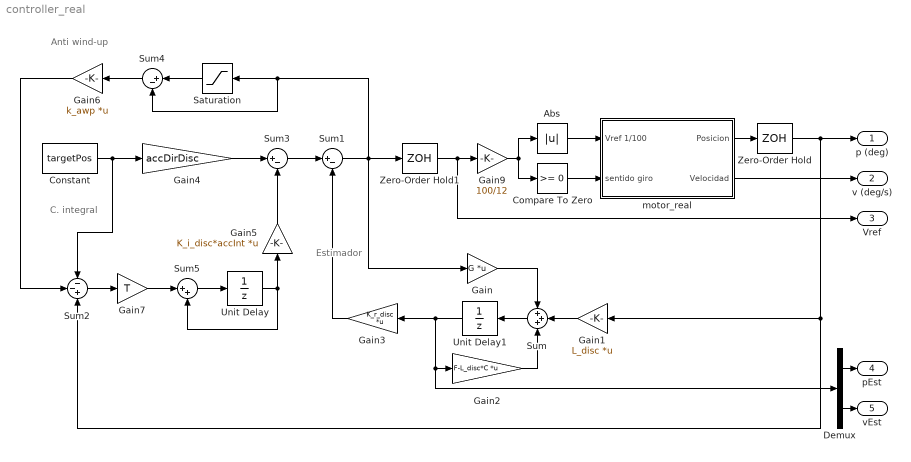
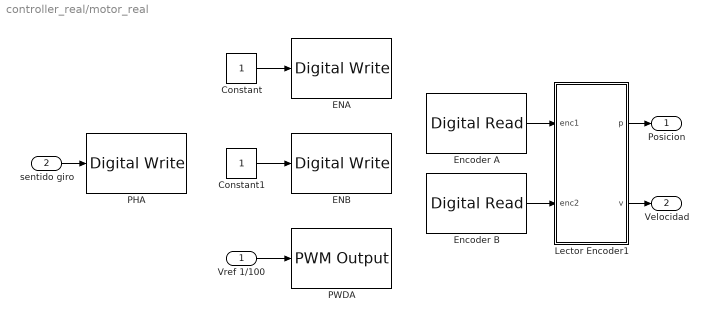
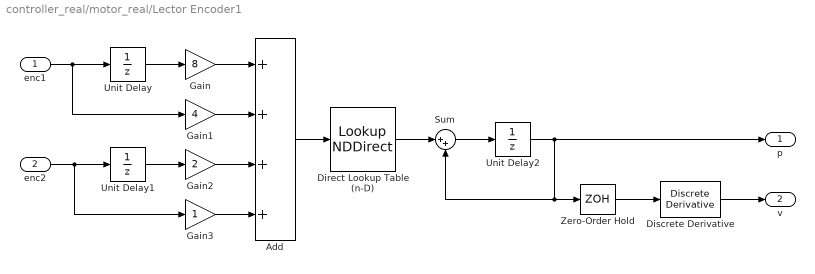
/*
 * controller_real.c
 *
 * Academic License - for use in teaching, academic research, and meeting
 * course requirements at degree granting institutions only.  Not for
 * government, commercial, or other organizational use.
 *
 * Code generation for model "controller_real".
 *
 * Model version              : 1.6
 * Simulink Coder version : 23.2 (R2023b) 01-Aug-2023
 * C source code generated on : Wed Jan 17 11:15:32 2024
 *
 * Target selection: ert.tlc
 * Note: GRT includes extra infrastructure and instrumentation for prototyping
 * Embedded hardware selection: ARM Compatible->ARM Cortex
 * Code generation objectives: Unspecified
 * Validation result: Not run
 */

#include "controller_real.h"
#include "rtwtypes.h"
#include <math.h>
#include <string.h>
#include "controller_real_private.h"

/* Block signals (default storage) */
B_controller_real_T controller_real_B;

/* Block states (default storage) */
DW_controller_real_T controller_real_DW;

/* External outputs (root outports fed by signals with default storage) */
ExtY_controller_real_T controller_real_Y;

/* Real-time model */
static RT_MODEL_controller_real_T controller_real_M_;
RT_MODEL_controller_real_T *const controller_real_M = &controller_real_M_;
static void rate_monotonic_scheduler(void);

/*
 * Set which subrates need to run this base step (base rate always runs).
 * This function must be called prior to calling the model step function
 * in order to remember which rates need to run this base step.  The
 * buffering of events allows for overlapping preemption.
 */
void controller_real_SetEventsForThisBaseStep(boolean_T *eventFlags)
{
  /* Task runs when its counter is zero, computed via rtmStepTask macro */
  eventFlags[1] = ((boolean_T)rtmStepTask(controller_real_M, 1));
}

/*
 *         This function updates active task flag for each subrate
 *         and rate transition flags for tasks that exchange data.
 *         The function assumes rate-monotonic multitasking scheduler.
 *         The function must be called at model base rate so that
 *         the generated code self-manages all its subrates and rate
 *         transition flags.
 */
static void rate_monotonic_scheduler(void)
{
  /* To ensure a deterministic data transfer between two rates,
   * data is transferred at the priority of a fast task and the frequency
   * of the slow task.  The following flags indicate when the data transfer
   * happens.  That is, a rate interaction flag is set true when both rates
   * will run, and false otherwise.
   */

  /* tid 0 shares data with slower tid rate: 1 */
  controller_real_M->Timing.RateInteraction.TID0_1 =
    (controller_real_M->Timing.TaskCounters.TID[1] == 0);

  /* Compute which subrates run during the next base time step.  Subrates
   * are an integer multiple of the base rate counter.  Therefore, the subtask
   * counter is reset when it reaches its limit (zero means run).
   */
  (controller_real_M->Timing.TaskCounters.TID[1])++;
  if ((controller_real_M->Timing.TaskCounters.TID[1]) > 99) {/* Sample time: [0.01s, 0.0s] */
    controller_real_M->Timing.TaskCounters.TID[1] = 0;
  }
}

/* Model step function for TID0 */
void controller_real_step0(void)       /* Sample time: [0.0001s, 0.0s] */
{
  real_T rtb_Gain9;
  real_T rtb_Sum1;
  boolean_T rtb_EncoderA_0;
  boolean_T rtb_EncoderB_0;

  {                                    /* Sample time: [0.0001s, 0.0s] */
    rate_monotonic_scheduler();
  }

  /* UnitDelay: '<Root>/Unit Delay1' */
  controller_real_B.UnitDelay1[0] = controller_real_DW.UnitDelay1_DSTATE[0];
  controller_real_B.UnitDelay1[1] = controller_real_DW.UnitDelay1_DSTATE[1];

  /* Outport: '<Root>/pEst' */
  controller_real_Y.pEst = controller_real_B.UnitDelay1[0];

  /* Outport: '<Root>/vEst' */
  controller_real_Y.vEst = controller_real_B.UnitDelay1[1];

  /* Sum: '<Root>/Sum1' incorporates:
   *  Constant: '<Root>/Constant'
   *  Gain: '<Root>/Gain3'
   *  Gain: '<Root>/Gain4'
   *  Gain: '<Root>/Gain5'
   *  Sum: '<Root>/Sum3'
   *  UnitDelay: '<Root>/Unit Delay'
   */
  rtb_Sum1 = (controller_real_P.accDirDisc * controller_real_P.targetPos -
              controller_real_P.K_i_disc * controller_real_P.accInt *
              controller_real_DW.UnitDelay_DSTATE) -
    (controller_real_P.K_r_disc[0] * controller_real_B.UnitDelay1[0] +
     controller_real_P.K_r_disc[1] * controller_real_B.UnitDelay1[1]);

  /* UnitDelay: '<S3>/Unit Delay2' */
  controller_real_B.UnitDelay2 = controller_real_DW.UnitDelay2_DSTATE;

  /* ZeroOrderHold: '<Root>/Zero-Order Hold' */
  controller_real_B.ZeroOrderHold = controller_real_B.UnitDelay2;

  /* Outport: '<Root>/p (deg)' */
  controller_real_Y.pdeg = controller_real_B.ZeroOrderHold;

  /* ZeroOrderHold: '<S3>/Zero-Order Hold' */
  if (controller_real_M->Timing.RateInteraction.TID0_1) {
    /* ZeroOrderHold: '<S3>/Zero-Order Hold' */
    controller_real_B.ZeroOrderHold_m = controller_real_B.UnitDelay2;
  }

  /* End of ZeroOrderHold: '<S3>/Zero-Order Hold' */

  /* MATLABSystem: '<S2>/Encoder A' */
  if (controller_real_DW.obj_n.SampleTime !=
      controller_real_P.EncoderA_SampleTime) {
    controller_real_DW.obj_n.SampleTime = controller_real_P.EncoderA_SampleTime;
  }

  rtb_EncoderA_0 = MW_digitalIO_read
    (controller_real_DW.obj_n.MW_DIGITALIO_HANDLE);

  /* MATLABSystem: '<S2>/Encoder B' */
  if (controller_real_DW.obj.SampleTime != controller_real_P.EncoderB_SampleTime)
  {
    controller_real_DW.obj.SampleTime = controller_real_P.EncoderB_SampleTime;
  }

  rtb_EncoderB_0 = MW_digitalIO_read(controller_real_DW.obj.MW_DIGITALIO_HANDLE);

  /* ZeroOrderHold: '<Root>/Zero-Order Hold1' */
  controller_real_B.ZeroOrderHold1 = rtb_Sum1;

  /* Outport: '<Root>/Vref' */
  controller_real_Y.Vref = controller_real_B.ZeroOrderHold1;

  /* Gain: '<Root>/Gain9' */
  rtb_Gain9 = controller_real_P.Gain9_Gain * controller_real_B.ZeroOrderHold1;

  /* MATLABSystem: '<S2>/PHA' incorporates:
   *  Constant: '<S1>/Constant'
   *  RelationalOperator: '<S1>/Compare'
   */
  MW_digitalIO_write(controller_real_DW.obj_d.MW_DIGITALIO_HANDLE, rtb_Gain9 >=
                     controller_real_P.Constant_Value);

  /* MATLABSystem: '<S2>/PWDA' incorporates:
   *  Abs: '<Root>/Abs'
   */
  MW_PWM_SetDutyCycle(controller_real_DW.obj_p.MW_PWM_HANDLE, fabs(rtb_Gain9));

  /* MATLABSystem: '<S2>/ENA' incorporates:
   *  Constant: '<S2>/Constant'
   */
  MW_digitalIO_write(controller_real_DW.obj_nf.MW_DIGITALIO_HANDLE,
                     controller_real_P.Constant_Value_h != 0.0);

  /* MATLABSystem: '<S2>/ENB' incorporates:
   *  Constant: '<S2>/Constant1'
   */
  MW_digitalIO_write(controller_real_DW.obj_e.MW_DIGITALIO_HANDLE,
                     controller_real_P.Constant1_Value != 0.0);

  /* Update for UnitDelay: '<Root>/Unit Delay1' incorporates:
   *  Gain: '<Root>/Gain'
   *  Gain: '<Root>/Gain1'
   *  Gain: '<Root>/Gain2'
   *  Sum: '<Root>/Sum'
   */
  controller_real_DW.UnitDelay1_DSTATE[0] = ((controller_real_P.F[0] -
    0.00189987512764489) * controller_real_B.UnitDelay1[0] +
    controller_real_B.UnitDelay1[1] * controller_real_P.F[2]) +
    (controller_real_P.G[0] * rtb_Sum1 + controller_real_P.L_disc[0] *
     controller_real_B.ZeroOrderHold);
  controller_real_DW.UnitDelay1_DSTATE[1] = ((controller_real_P.F[1] -
    0.079644552074987579) * controller_real_B.UnitDelay1[0] +
    controller_real_B.UnitDelay1[1] * controller_real_P.F[3]) +
    (controller_real_P.G[1] * rtb_Sum1 + controller_real_P.L_disc[1] *
     controller_real_B.ZeroOrderHold);

  /* Saturate: '<Root>/Saturation' */
  if (rtb_Sum1 > controller_real_P.Saturation_UpperSat) {
    rtb_Gain9 = controller_real_P.Saturation_UpperSat;
  } else if (rtb_Sum1 < controller_real_P.Saturation_LowerSat) {
    rtb_Gain9 = controller_real_P.Saturation_LowerSat;
  } else {
    rtb_Gain9 = rtb_Sum1;
  }

  /* Update for UnitDelay: '<Root>/Unit Delay' incorporates:
   *  Constant: '<Root>/Constant'
   *  Gain: '<Root>/Gain6'
   *  Gain: '<Root>/Gain7'
   *  Saturate: '<Root>/Saturation'
   *  Sum: '<Root>/Sum2'
   *  Sum: '<Root>/Sum4'
   *  Sum: '<Root>/Sum5'
   */
  controller_real_DW.UnitDelay_DSTATE += ((controller_real_B.ZeroOrderHold -
    controller_real_P.targetPos) - (rtb_Gain9 - rtb_Sum1) *
    controller_real_P.k_awp) * controller_real_P.T;

  /* LookupNDDirect: '<S3>/Direct Lookup Table (n-D)' incorporates:
   *  Gain: '<S3>/Gain'
   *  Gain: '<S3>/Gain1'
   *  Gain: '<S3>/Gain2'
   *  Gain: '<S3>/Gain3'
   *  MATLABSystem: '<S2>/Encoder A'
   *  MATLABSystem: '<S2>/Encoder B'
   *  Sum: '<S3>/Add'
   *  UnitDelay: '<S3>/Unit Delay'
   *  UnitDelay: '<S3>/Unit Delay1'
   *
   * About '<S3>/Direct Lookup Table (n-D)':
   *  1-dimensional Direct Look-Up returning a Scalar,
   *
   *     Remove protection against out-of-range input in generated code: 'off'
   */
  rtb_Sum1 = (((real_T)(controller_real_DW.UnitDelay_DSTATE_a ? (int32_T)
                        controller_real_P.Gain_Gain : 0) * 0.0625 + (real_T)
               (rtb_EncoderA_0 ? (int32_T)controller_real_P.Gain1_Gain : 0) *
               0.03125) + (real_T)(controller_real_DW.UnitDelay1_DSTATE_n ?
    (int32_T)controller_real_P.Gain2_Gain : 0) * 0.015625) + (real_T)
    (rtb_EncoderB_0 ? (int32_T)controller_real_P.Gain3_Gain : 0) * 0.0078125;
  if (rtb_Sum1 > 15.0) {
    rtb_Sum1 = 15.0;
  }

  /* Update for UnitDelay: '<S3>/Unit Delay2' incorporates:
   *  LookupNDDirect: '<S3>/Direct Lookup Table (n-D)'
   *  Sum: '<S3>/Sum'
   *
   * About '<S3>/Direct Lookup Table (n-D)':
   *  1-dimensional Direct Look-Up returning a Scalar,
   *
   *     Remove protection against out-of-range input in generated code: 'off'
   */
  controller_real_DW.UnitDelay2_DSTATE =
    controller_real_P.DirectLookupTablenD_table[(int32_T)rtb_Sum1] +
    controller_real_B.UnitDelay2;

  /* Update for UnitDelay: '<S3>/Unit Delay' incorporates:
   *  MATLABSystem: '<S2>/Encoder A'
   */
  controller_real_DW.UnitDelay_DSTATE_a = rtb_EncoderA_0;

  /* Update for UnitDelay: '<S3>/Unit Delay1' incorporates:
   *  MATLABSystem: '<S2>/Encoder B'
   */
  controller_real_DW.UnitDelay1_DSTATE_n = rtb_EncoderB_0;

  /* Update absolute time */
  /* The "clockTick0" counts the number of times the code of this task has
   * been executed. The absolute time is the multiplication of "clockTick0"
   * and "Timing.stepSize0". Size of "clockTick0" ensures timer will not
   * overflow during the application lifespan selected.
   * Timer of this task consists of two 32 bit unsigned integers.
   * The two integers represent the low bits Timing.clockTick0 and the high bits
   * Timing.clockTickH0. When the low bit overflows to 0, the high bits increment.
   */
  if (!(++controller_real_M->Timing.clockTick0)) {
    ++controller_real_M->Timing.clockTickH0;
  }

  controller_real_M->Timing.taskTime0 = controller_real_M->Timing.clockTick0 *
    controller_real_M->Timing.stepSize0 + controller_real_M->Timing.clockTickH0 *
    controller_real_M->Timing.stepSize0 * 4294967296.0;
}

/* Model step function for TID1 */
void controller_real_step1(void)       /* Sample time: [0.01s, 0.0s] */
{
  real_T rtb_TSamp;

  /* SampleTimeMath: '<S4>/TSamp'
   *
   * About '<S4>/TSamp':
   *  y = u * K where K = 1 / ( w * Ts )
   */
  rtb_TSamp = controller_real_B.ZeroOrderHold_m * controller_real_P.TSamp_WtEt;

  /* Sum: '<S4>/Diff' incorporates:
   *  UnitDelay: '<S4>/UD'
   */
  controller_real_B.Diff = rtb_TSamp - controller_real_DW.UD_DSTATE;

  /* Outport: '<Root>/v (deg//s)' */
  controller_real_Y.vdegs = controller_real_B.Diff;

  /* Update for UnitDelay: '<S4>/UD' */
  controller_real_DW.UD_DSTATE = rtb_TSamp;

  /* Update absolute time */
  /* The "clockTick1" counts the number of times the code of this task has
   * been executed. The resolution of this integer timer is 0.01, which is the step size
   * of the task. Size of "clockTick1" ensures timer will not overflow during the
   * application lifespan selected.
   * Timer of this task consists of two 32 bit unsigned integers.
   * The two integers represent the low bits Timing.clockTick1 and the high bits
   * Timing.clockTickH1. When the low bit overflows to 0, the high bits increment.
   */
  controller_real_M->Timing.clockTick1++;
  if (!controller_real_M->Timing.clockTick1) {
    controller_real_M->Timing.clockTickH1++;
  }
}
